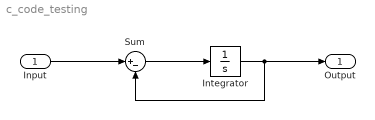
/*
 * c_code_testing.c
 *
 * Academic License - for use in teaching, academic research, and meeting
 * course requirements at degree granting institutions only.  Not for
 * government, commercial, or other organizational use.
 *
 * Code generation for model "c_code_testing".
 *
 * Model version              : 1.2
 * Simulink Coder version : 9.5 (R2021a) 14-Nov-2020
 * C source code generated on : Tue Jun 29 20:40:44 2021
 *
 * Target selection: grt.tlc
 * Note: GRT includes extra infrastructure and instrumentation for prototyping
 * Embedded hardware selection: Intel->x86-64 (Windows64)
 * Code generation objectives: Unspecified
 * Validation result: Not run
 */

#include "c_code_testing.h"
#include "c_code_testing_private.h"
#include "c_code_testing_dt.h"

/* Block signals (default storage) */
B_c_code_testing_T c_code_testing_B;

/* Continuous states */
X_c_code_testing_T c_code_testing_X;

/* External inputs (root inport signals with default storage) */
ExtU_c_code_testing_T c_code_testing_U;

/* External outputs (root outports fed by signals with default storage) */
ExtY_c_code_testing_T c_code_testing_Y;

/* Real-time model */
static RT_MODEL_c_code_testing_T c_code_testing_M_;
RT_MODEL_c_code_testing_T *const c_code_testing_M = &c_code_testing_M_;

/*
 * This function updates continuous states using the ODE3 fixed-step
 * solver algorithm
 */
static void rt_ertODEUpdateContinuousStates(RTWSolverInfo *si )
{
  /* Solver Matrices */
  static const real_T rt_ODE3_A[3] = {
    1.0/2.0, 3.0/4.0, 1.0
  };

  static const real_T rt_ODE3_B[3][3] = {
    { 1.0/2.0, 0.0, 0.0 },

    { 0.0, 3.0/4.0, 0.0 },

    { 2.0/9.0, 1.0/3.0, 4.0/9.0 }
  };

  time_T t = rtsiGetT(si);
  time_T tnew = rtsiGetSolverStopTime(si);
  time_T h = rtsiGetStepSize(si);
  real_T *x = rtsiGetContStates(si);
  ODE3_IntgData *id = (ODE3_IntgData *)rtsiGetSolverData(si);
  real_T *y = id->y;
  real_T *f0 = id->f[0];
  real_T *f1 = id->f[1];
  real_T *f2 = id->f[2];
  real_T hB[3];
  int_T i;
  int_T nXc = 1;
  rtsiSetSimTimeStep(si,MINOR_TIME_STEP);

  /* Save the state values at time t in y, we'll use x as ynew. */
  (void) memcpy(y, x,
                (uint_T)nXc*sizeof(real_T));

  /* Assumes that rtsiSetT and ModelOutputs are up-to-date */
  /* f0 = f(t,y) */
  rtsiSetdX(si, f0);
  c_code_testing_derivatives();

  /* f(:,2) = feval(odefile, t + hA(1), y + f*hB(:,1), args(:)(*)); */
  hB[0] = h * rt_ODE3_B[0][0];
  for (i = 0; i < nXc; i++) {
    x[i] = y[i] + (f0[i]*hB[0]);
  }

  rtsiSetT(si, t + h*rt_ODE3_A[0]);
  rtsiSetdX(si, f1);
  c_code_testing_step();
  c_code_testing_derivatives();

  /* f(:,3) = feval(odefile, t + hA(2), y + f*hB(:,2), args(:)(*)); */
  for (i = 0; i <= 1; i++) {
    hB[i] = h * rt_ODE3_B[1][i];
  }

  for (i = 0; i < nXc; i++) {
    x[i] = y[i] + (f0[i]*hB[0] + f1[i]*hB[1]);
  }

  rtsiSetT(si, t + h*rt_ODE3_A[1]);
  rtsiSetdX(si, f2);
  c_code_testing_step();
  c_code_testing_derivatives();

  /* tnew = t + hA(3);
     ynew = y + f*hB(:,3); */
  for (i = 0; i <= 2; i++) {
    hB[i] = h * rt_ODE3_B[2][i];
  }

  for (i = 0; i < nXc; i++) {
    x[i] = y[i] + (f0[i]*hB[0] + f1[i]*hB[1] + f2[i]*hB[2]);
  }

  rtsiSetT(si, tnew);
  rtsiSetSimTimeStep(si,MAJOR_TIME_STEP);
}

/* Model step function */
void c_code_testing_step(void)
{
  if (rtmIsMajorTimeStep(c_code_testing_M)) {
    /* set solver stop time */
    if (!(c_code_testing_M->Timing.clockTick0+1)) {
      rtsiSetSolverStopTime(&c_code_testing_M->solverInfo,
                            ((c_code_testing_M->Timing.clockTickH0 + 1) *
        c_code_testing_M->Timing.stepSize0 * 4294967296.0));
    } else {
      rtsiSetSolverStopTime(&c_code_testing_M->solverInfo,
                            ((c_code_testing_M->Timing.clockTick0 + 1) *
        c_code_testing_M->Timing.stepSize0 +
        c_code_testing_M->Timing.clockTickH0 *
        c_code_testing_M->Timing.stepSize0 * 4294967296.0));
    }
  }                                    /* end MajorTimeStep */

  /* Update absolute time of base rate at minor time step */
  if (rtmIsMinorTimeStep(c_code_testing_M)) {
    c_code_testing_M->Timing.t[0] = rtsiGetT(&c_code_testing_M->solverInfo);
  }

  /* Outport: '<Root>/Output' incorporates:
   *  Integrator: '<Root>/Integrator'
   */
  c_code_testing_Y.Output = c_code_testing_X.Integrator_CSTATE;

  /* Sum: '<Root>/Sum' incorporates:
   *  Inport: '<Root>/Input'
   *  Integrator: '<Root>/Integrator'
   */
  c_code_testing_B.Sum = c_code_testing_U.Input -
    c_code_testing_X.Integrator_CSTATE;
  if (rtmIsMajorTimeStep(c_code_testing_M)) {
    /* Matfile logging */
    rt_UpdateTXYLogVars(c_code_testing_M->rtwLogInfo,
                        (c_code_testing_M->Timing.t));
  }                                    /* end MajorTimeStep */

  if (rtmIsMajorTimeStep(c_code_testing_M)) {
    /* External mode */
    rtExtModeUploadCheckTrigger(2);

    {                                  /* Sample time: [0.0s, 0.0s] */
      rtExtModeUpload(0, (real_T)c_code_testing_M->Timing.t[0]);
    }

    if (rtmIsMajorTimeStep(c_code_testing_M)) {/* Sample time: [0.001s, 0.0s] */
      rtExtModeUpload(1, (real_T)(((c_code_testing_M->Timing.clockTick1+
        c_code_testing_M->Timing.clockTickH1* 4294967296.0)) * 0.001));
    }
  }                                    /* end MajorTimeStep */

  if (rtmIsMajorTimeStep(c_code_testing_M)) {
    /* signal main to stop simulation */
    {                                  /* Sample time: [0.0s, 0.0s] */
      if ((rtmGetTFinal(c_code_testing_M)!=-1) &&
          !((rtmGetTFinal(c_code_testing_M)-
             (((c_code_testing_M->Timing.clockTick1+
                c_code_testing_M->Timing.clockTickH1* 4294967296.0)) * 0.001)) >
            (((c_code_testing_M->Timing.clockTick1+
               c_code_testing_M->Timing.clockTickH1* 4294967296.0)) * 0.001) *
            (DBL_EPSILON))) {
        rtmSetErrorStatus(c_code_testing_M, "Simulation finished");
      }

      if (rtmGetStopRequested(c_code_testing_M)) {
        rtmSetErrorStatus(c_code_testing_M, "Simulation finished");
      }
    }

    rt_ertODEUpdateContinuousStates(&c_code_testing_M->solverInfo);

    /* Update absolute time for base rate */
    /* The "clockTick0" counts the number of times the code of this task has
     * been executed. The absolute time is the multiplication of "clockTick0"
     * and "Timing.stepSize0". Size of "clockTick0" ensures timer will not
     * overflow during the application lifespan selected.
     * Timer of this task consists of two 32 bit unsigned integers.
     * The two integers represent the low bits Timing.clockTick0 and the high bits
     * Timing.clockTickH0. When the low bit overflows to 0, the high bits increment.
     */
    if (!(++c_code_testing_M->Timing.clockTick0)) {
      ++c_code_testing_M->Timing.clockTickH0;
    }

    c_code_testing_M->Timing.t[0] = rtsiGetSolverStopTime
      (&c_code_testing_M->solverInfo);

    {
      /* Update absolute timer for sample time: [0.001s, 0.0s] */
      /* The "clockTick1" counts the number of times the code of this task has
       * been executed. The resolution of this integer timer is 0.001, which is the step size
       * of the task. Size of "clockTick1" ensures timer will not overflow during the
       * application lifespan selected.
       * Timer of this task consists of two 32 bit unsigned integers.
       * The two integers represent the low bits Timing.clockTick1 and the high bits
       * Timing.clockTickH1. When the low bit overflows to 0, the high bits increment.
       */
      c_code_testing_M->Timing.clockTick1++;
      if (!c_code_testing_M->Timing.clockTick1) {
        c_code_testing_M->Timing.clockTickH1++;
      }
    }
  }                                    /* end MajorTimeStep */
}
